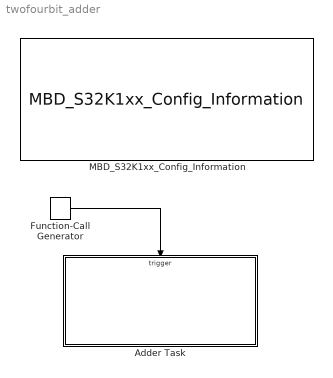
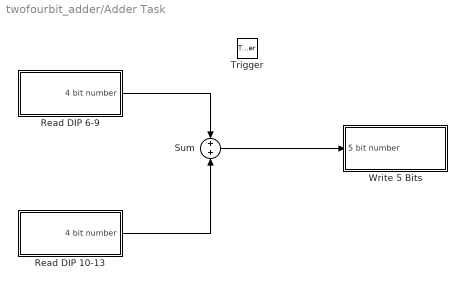
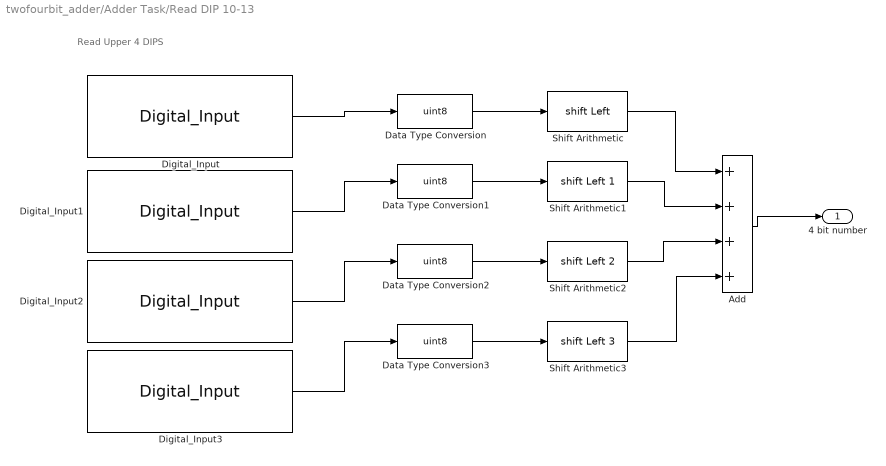
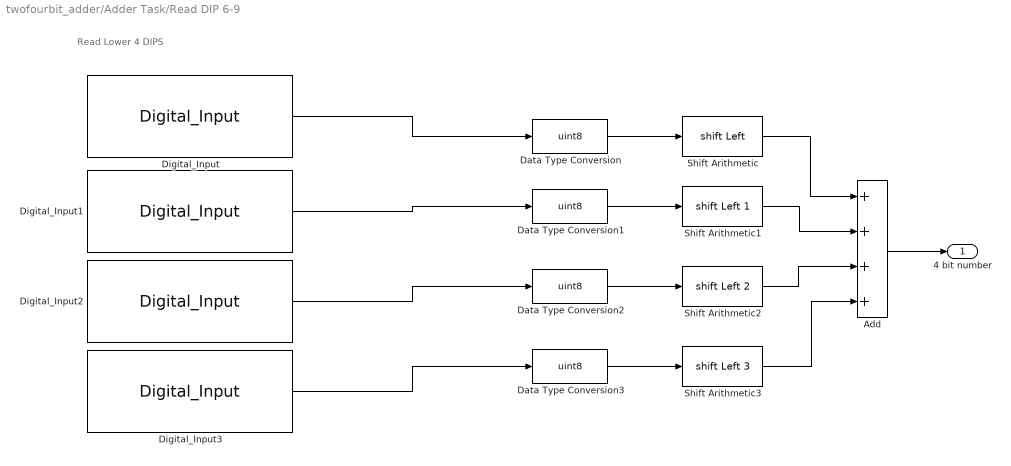
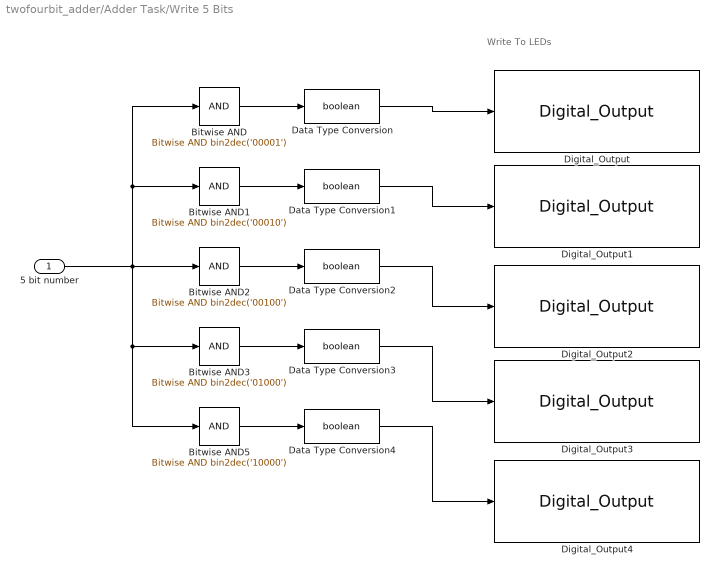
/*
 * Academic License - for use in teaching, academic research, and meeting
 * course requirements at degree granting institutions only.  Not for
 * government, commercial, or other organizational use.
 *
 * File: twofourbit_adder.c
 *
 * Code generated for Simulink model 'twofourbit_adder'.
 *
 * Model version                   : 6.0
 * Simulink Coder version          : 9.8 (R2022b) 13-May-2022
 * MBDT for S32K1xx Series Version : 4.3.0 (R2016a-R2022a) 13-Sep-2022
 * C/C++ source code generated on  : Thu Nov  9 14:29:10 2023
 *
 * Target selection: mbd_s32k.tlc
 * Embedded hardware selection: ARM Compatible->ARM Cortex
 * Code generation objectives: Unspecified
 * Validation result: Not run
 */

#include "twofourbit_adder.h"
#include "rtwtypes.h"
#include "twofourbit_adder_private.h"

/* Block signals (default storage) */
B_twofourbit_adder_T twofourbit_adder_B;

/* Real-time model */
static RT_MODEL_twofourbit_adder_T twofourbit_adder_M_;
RT_MODEL_twofourbit_adder_T *const twofourbit_adder_M = &twofourbit_adder_M_;

/* Model step function */
void twofourbit_adder_step(void)
{
  uint8_T rtb_Sum;

  /* S-Function (fcgen): '<Root>/Function-Call Generator' incorporates:
   *  SubSystem: '<Root>/Adder Task'
   */
  /* S-Function (gpio_s32k_input): '<S3>/Digital_Input' */

  /* GPIPORTE6 signal update */
  twofourbit_adder_B.Digital_Input = (PINS_DRV_ReadPins(PTE) >> 6) & 0x01;

  /* S-Function (gpio_s32k_input): '<S3>/Digital_Input1' */

  /* GPIPORTE7 signal update */
  twofourbit_adder_B.Digital_Input1 = (PINS_DRV_ReadPins(PTE) >> 7) & 0x01;

  /* S-Function (gpio_s32k_input): '<S3>/Digital_Input2' */

  /* GPIPORTE8 signal update */
  twofourbit_adder_B.Digital_Input2 = (PINS_DRV_ReadPins(PTE) >> 8) & 0x01;

  /* S-Function (gpio_s32k_input): '<S3>/Digital_Input3' */

  /* GPIPORTE9 signal update */
  twofourbit_adder_B.Digital_Input3 = (PINS_DRV_ReadPins(PTE) >> 9) & 0x01;

  /* S-Function (gpio_s32k_input): '<S2>/Digital_Input' */

  /* GPIPORTE10 signal update */
  twofourbit_adder_B.Digital_Input_e = (PINS_DRV_ReadPins(PTE) >> 10) & 0x01;

  /* S-Function (gpio_s32k_input): '<S2>/Digital_Input1' */

  /* GPIPORTE11 signal update */
  twofourbit_adder_B.Digital_Input1_g = (PINS_DRV_ReadPins(PTE) >> 11) & 0x01;

  /* S-Function (gpio_s32k_input): '<S2>/Digital_Input2' */

  /* GPIPORTE12 signal update */
  twofourbit_adder_B.Digital_Input2_h = (PINS_DRV_ReadPins(PTE) >> 12) & 0x01;

  /* S-Function (gpio_s32k_input): '<S2>/Digital_Input3' */

  /* GPIPORTE13 signal update */
  twofourbit_adder_B.Digital_Input3_p = (PINS_DRV_ReadPins(PTE) >> 13) & 0x01;

  /* Sum: '<S1>/Sum' incorporates:
   *  ArithShift: '<S2>/Shift Arithmetic1'
   *  ArithShift: '<S2>/Shift Arithmetic2'
   *  ArithShift: '<S2>/Shift Arithmetic3'
   *  ArithShift: '<S3>/Shift Arithmetic1'
   *  ArithShift: '<S3>/Shift Arithmetic2'
   *  ArithShift: '<S3>/Shift Arithmetic3'
   *  DataTypeConversion: '<S2>/Data Type Conversion'
   *  DataTypeConversion: '<S2>/Data Type Conversion1'
   *  DataTypeConversion: '<S2>/Data Type Conversion2'
   *  DataTypeConversion: '<S2>/Data Type Conversion3'
   *  DataTypeConversion: '<S3>/Data Type Conversion'
   *  DataTypeConversion: '<S3>/Data Type Conversion1'
   *  DataTypeConversion: '<S3>/Data Type Conversion2'
   *  DataTypeConversion: '<S3>/Data Type Conversion3'
   *  Sum: '<S2>/Add'
   *  Sum: '<S3>/Add'
   */
  rtb_Sum = (uint8_T)((((((((uint32_T)(twofourbit_adder_B.Digital_Input1 << 1) +
    twofourbit_adder_B.Digital_Input) + (uint32_T)
    (twofourbit_adder_B.Digital_Input2 << 2)) + (uint32_T)
    (twofourbit_adder_B.Digital_Input3 << 3)) +
    twofourbit_adder_B.Digital_Input_e) + (uint32_T)
                        (twofourbit_adder_B.Digital_Input1_g << 1)) + (uint32_T)
                       (twofourbit_adder_B.Digital_Input2_h << 2)) + (uint32_T)
                      (twofourbit_adder_B.Digital_Input3_p << 3));

  /* DataTypeConversion: '<S4>/Data Type Conversion' incorporates:
   *  S-Function (sfix_bitop): '<S4>/Bitwise AND'
   */
  twofourbit_adder_B.DataTypeConversion = ((rtb_Sum & 1U) != 0U);

  /* S-Function (gpio_s32k_output): '<S4>/Digital_Output' */

  /* GPOPORTD0 Data Signal Update */
  if (twofourbit_adder_B.DataTypeConversion) {
    PINS_DRV_SetPins(PTD, 1UL<<0);
  } else {
    PINS_DRV_ClearPins(PTD, 1UL<<0);
  }

  /* DataTypeConversion: '<S4>/Data Type Conversion1' incorporates:
   *  S-Function (sfix_bitop): '<S4>/Bitwise AND1'
   */
  twofourbit_adder_B.DataTypeConversion1 = ((rtb_Sum & 2U) != 0U);

  /* S-Function (gpio_s32k_output): '<S4>/Digital_Output1' */

  /* GPOPORTD1 Data Signal Update */
  if (twofourbit_adder_B.DataTypeConversion1) {
    PINS_DRV_SetPins(PTD, 1UL<<1);
  } else {
    PINS_DRV_ClearPins(PTD, 1UL<<1);
  }

  /* DataTypeConversion: '<S4>/Data Type Conversion2' incorporates:
   *  S-Function (sfix_bitop): '<S4>/Bitwise AND2'
   */
  twofourbit_adder_B.DataTypeConversion2 = ((rtb_Sum & 4U) != 0U);

  /* S-Function (gpio_s32k_output): '<S4>/Digital_Output2' */

  /* GPOPORTD2 Data Signal Update */
  if (twofourbit_adder_B.DataTypeConversion2) {
    PINS_DRV_SetPins(PTD, 1UL<<2);
  } else {
    PINS_DRV_ClearPins(PTD, 1UL<<2);
  }

  /* DataTypeConversion: '<S4>/Data Type Conversion3' incorporates:
   *  S-Function (sfix_bitop): '<S4>/Bitwise AND3'
   */
  twofourbit_adder_B.DataTypeConversion3 = ((rtb_Sum & 8U) != 0U);

  /* S-Function (gpio_s32k_output): '<S4>/Digital_Output3' */

  /* GPOPORTD3 Data Signal Update */
  if (twofourbit_adder_B.DataTypeConversion3) {
    PINS_DRV_SetPins(PTD, 1UL<<3);
  } else {
    PINS_DRV_ClearPins(PTD, 1UL<<3);
  }

  /* DataTypeConversion: '<S4>/Data Type Conversion4' incorporates:
   *  S-Function (sfix_bitop): '<S4>/Bitwise AND5'
   */
  twofourbit_adder_B.DataTypeConversion4 = ((rtb_Sum & 16U) != 0U);

  /* S-Function (gpio_s32k_output): '<S4>/Digital_Output4' */

  /* GPOPORTD4 Data Signal Update */
  if (twofourbit_adder_B.DataTypeConversion4) {
    PINS_DRV_SetPins(PTD, 1UL<<4);
  } else {
    PINS_DRV_ClearPins(PTD, 1UL<<4);
  }

  /* End of Outputs for S-Function (fcgen): '<Root>/Function-Call Generator' */
}
